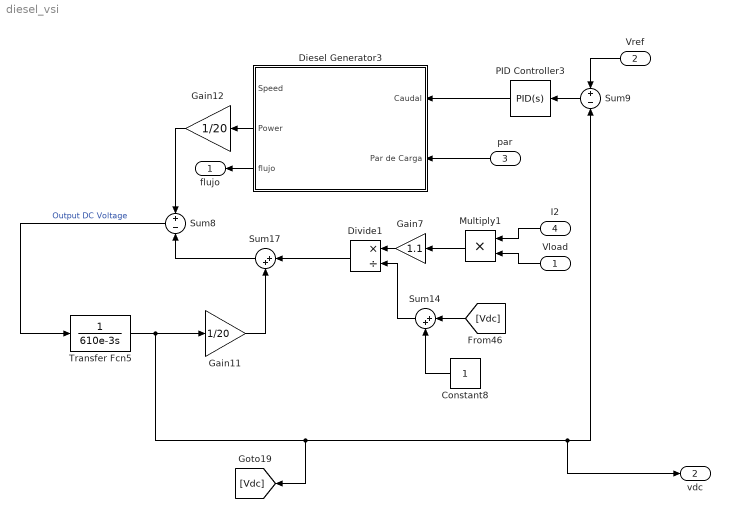
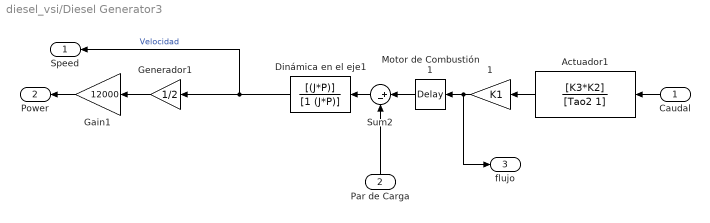
/*
 * File: diesel_vsi.c
 *
 * Code generated for Simulink model 'diesel_vsi'.
 *
 * Model version                  : 1.25
 * Simulink Coder version         : 8.14 (R2018a) 06-Feb-2018
 * C/C++ source code generated on : Tue May 14 08:17:43 2019
 *
 * Target selection: ert.tlc
 * Embedded hardware selection: Intel->x86-64 (Windows64)
 * Code generation objectives: Unspecified
 * Validation result: Not run
 */

#include "diesel_vsi.h"
#include "diesel_vsi_private.h"

/* Block signals (default storage) */
B_diesel_vsi_T diesel_vsi_B;

/* Continuous states */
X_diesel_vsi_T diesel_vsi_X;

/* Block states (default storage) */
DW_diesel_vsi_T diesel_vsi_DW;

/* External inputs (root inport signals with default storage) */
ExtU_diesel_vsi_T diesel_vsi_U;

/* External outputs (root outports fed by signals with default storage) */
ExtY_diesel_vsi_T diesel_vsi_Y;

/* Real-time model */
RT_MODEL_diesel_vsi_T diesel_vsi_M_;
RT_MODEL_diesel_vsi_T *const diesel_vsi_M = &diesel_vsi_M_;


//-------Funciones para asignar entradas-------------
void set_Vload(double Vload){
	diesel_vsi_U.Vload=Vload;
}

void set_par(double par){
	diesel_vsi_U.par=par;
}

void set_Vref(double flujo){
	diesel_vsi_U.Vref=flujo;
}

void set_Iinv(double iinv){
	diesel_vsi_U.I2=iinv;
}

//-----Funciones para obtener valores de las salidas-------

double get_flujo(void){
	return diesel_vsi_Y.flujo;
}

double get_vdc(void){
	return diesel_vsi_Y.vdc;
}

/*
 * Time delay interpolation routine
 *
 * The linear interpolation is performed using the formula:
 *
 *          (t2 - tMinusDelay)         (tMinusDelay - t1)
 * u(t)  =  ----------------- * u1  +  ------------------- * u2
 *              (t2 - t1)                  (t2 - t1)
 */
real_T rt_TDelayInterpolate(
  real_T tMinusDelay,                  /* tMinusDelay = currentSimTime - delay */
  real_T tStart,
  real_T *tBuf,
  real_T *uBuf,
  int_T bufSz,
  int_T *lastIdx,
  int_T oldestIdx,
  int_T newIdx,
  real_T initOutput,
  boolean_T discrete,
  boolean_T minorStepAndTAtLastMajorOutput)
{
  int_T i;
  real_T yout, t1, t2, u1, u2;

  /*
   * If there is only one data point in the buffer, this data point must be
   * the t= 0 and tMinusDelay > t0, it ask for something unknown. The best
   * guess if initial output as well
   */
  if ((newIdx == 0) && (oldestIdx ==0 ) && (tMinusDelay > tStart))
    return initOutput;

  /*
   * If tMinusDelay is less than zero, should output initial value
   */
  if (tMinusDelay <= tStart)
    return initOutput;

  /* For fixed buffer extrapolation:
   * if tMinusDelay is small than the time at oldestIdx, if discrete, output
   * tailptr value,  else use tailptr and tailptr+1 value to extrapolate
   * It is also for fixed buffer. Note: The same condition can happen for transport delay block where
   * use tStart and and t[tail] other than using t[tail] and t[tail+1].
   * See below
   */
  if ((tMinusDelay <= tBuf[oldestIdx] ) ) {
    if (discrete) {
      return(uBuf[oldestIdx]);
    } else {
      int_T tempIdx= oldestIdx + 1;
      if (oldestIdx == bufSz-1)
        tempIdx = 0;
      t1= tBuf[oldestIdx];
      t2= tBuf[tempIdx];
      u1= uBuf[oldestIdx];
      u2= uBuf[tempIdx];
      if (t2 == t1) {
        if (tMinusDelay >= t2) {
          yout = u2;
        } else {
          yout = u1;
        }
      } else {
        real_T f1 = (t2-tMinusDelay) / (t2-t1);
        real_T f2 = 1.0 - f1;

        /*
         * Use Lagrange's interpolation formula.  Exact outputs at t1, t2.
         */
        yout = f1*u1 + f2*u2;
      }

      return yout;
    }
  }

  /*
   * When block does not have direct feedthrough, we use the table of
   * values to extrapolate off the end of the table for delays that are less
   * than 0 (less then step size).  This is not completely accurate.  The
   * chain of events is as follows for a given time t.  Major output - look
   * in table.  Update - add entry to table.  Now, if we call the output at
   * time t again, there is a new entry in the table. For very small delays,
   * this means that we will have a different answer from the previous call
   * to the output fcn at the same time t.  The following code prevents this
   * from happening.
   */
  if (minorStepAndTAtLastMajorOutput) {
    /* pretend that the new entry has not been added to table */
    if (newIdx != 0) {
      if (*lastIdx == newIdx) {
        (*lastIdx)--;
      }

      newIdx--;
    } else {
      if (*lastIdx == newIdx) {
        *lastIdx = bufSz-1;
      }

      newIdx = bufSz - 1;
    }
  }

  i = *lastIdx;
  if (tBuf[i] < tMinusDelay) {
    /* Look forward starting at last index */
    while (tBuf[i] < tMinusDelay) {
      /* May occur if the delay is less than step-size - extrapolate */
      if (i == newIdx)
        break;
      i = ( i < (bufSz-1) ) ? (i+1) : 0;/* move through buffer */
    }
  } else {
    /*
     * Look backwards starting at last index which can happen when the
     * delay time increases.
     */
    while (tBuf[i] >= tMinusDelay) {
      /*
       * Due to the entry condition at top of function, we
       * should never hit the end.
       */
      i = (i > 0) ? i-1 : (bufSz-1);   /* move through buffer */
    }

    i = ( i < (bufSz-1) ) ? (i+1) : 0;
  }

  *lastIdx = i;
  if (discrete) {
    /*
     * tempEps = 128 * eps;
     * localEps = max(tempEps, tempEps*fabs(tBuf[i]))/2;
     */
    double tempEps = (DBL_EPSILON) * 128.0;
    double localEps = tempEps * fabs(tBuf[i]);
    if (tempEps > localEps) {
      localEps = tempEps;
    }

    localEps = localEps / 2.0;
    if (tMinusDelay >= (tBuf[i] - localEps)) {
      yout = uBuf[i];
    } else {
      if (i == 0) {
        yout = uBuf[bufSz-1];
      } else {
        yout = uBuf[i-1];
      }
    }
  } else {
    if (i == 0) {
      t1 = tBuf[bufSz-1];
      u1 = uBuf[bufSz-1];
    } else {
      t1 = tBuf[i-1];
      u1 = uBuf[i-1];
    }

    t2 = tBuf[i];
    u2 = uBuf[i];
    if (t2 == t1) {
      if (tMinusDelay >= t2) {
        yout = u2;
      } else {
        yout = u1;
      }
    } else {
      real_T f1 = (t2-tMinusDelay) / (t2-t1);
      real_T f2 = 1.0 - f1;

      /*
       * Use Lagrange's interpolation formula.  Exact outputs at t1, t2.
       */
      yout = f1*u1 + f2*u2;
    }
  }

  return(yout);
}

/*
 * This function updates continuous states using the ODE4 fixed-step
 * solver algorithm
 */
static void rt_ertODEUpdateContinuousStates(RTWSolverInfo *si )
{
  time_T t = rtsiGetT(si);
  time_T tnew = rtsiGetSolverStopTime(si);
  time_T h = rtsiGetStepSize(si);
  real_T *x = rtsiGetContStates(si);
  ODE4_IntgData *id = (ODE4_IntgData *)rtsiGetSolverData(si);
  real_T *y = id->y;
  real_T *f0 = id->f[0];
  real_T *f1 = id->f[1];
  real_T *f2 = id->f[2];
  real_T *f3 = id->f[3];
  real_T temp;
  int_T i;
  int_T nXc = 5;
  rtsiSetSimTimeStep(si,MINOR_TIME_STEP);

  /* Save the state values at time t in y, we'll use x as ynew. */
  (void) memcpy(y, x,
                (uint_T)nXc*sizeof(real_T));

  /* Assumes that rtsiSetT and ModelOutputs are up-to-date */
  /* f0 = f(t,y) */
  rtsiSetdX(si, f0);
  diesel_vsi_derivatives();

  /* f1 = f(t + (h/2), y + (h/2)*f0) */
  temp = 0.5 * h;
  for (i = 0; i < nXc; i++) {
    x[i] = y[i] + (temp*f0[i]);
  }

  rtsiSetT(si, t + temp);
  rtsiSetdX(si, f1);
  diesel_vsi_step();
  diesel_vsi_derivatives();

  /* f2 = f(t + (h/2), y + (h/2)*f1) */
  for (i = 0; i < nXc; i++) {
    x[i] = y[i] + (temp*f1[i]);
  }

  rtsiSetdX(si, f2);
  diesel_vsi_step();
  diesel_vsi_derivatives();

  /* f3 = f(t + h, y + h*f2) */
  for (i = 0; i < nXc; i++) {
    x[i] = y[i] + (h*f2[i]);
  }

  rtsiSetT(si, tnew);
  rtsiSetdX(si, f3);
  diesel_vsi_step();
  diesel_vsi_derivatives();

  /* tnew = t + h
     ynew = y + (h/6)*(f0 + 2*f1 + 2*f2 + 2*f3) */
  temp = h / 6.0;
  for (i = 0; i < nXc; i++) {
    x[i] = y[i] + temp*(f0[i] + 2.0*f1[i] + 2.0*f2[i] + f3[i]);
  }

  rtsiSetSimTimeStep(si,MAJOR_TIME_STEP);
}

/* Model step function */
void diesel_vsi_step(void)
{
  /* local block i/o variables */
  real_T rtb_u;
  real_T rtb_MotordeCombustin1;
  real_T rtb_Sum9;
  if (rtmIsMajorTimeStep(diesel_vsi_M)) {
    /* set solver stop time */
    rtsiSetSolverStopTime(&diesel_vsi_M->solverInfo,
                          ((diesel_vsi_M->Timing.clockTick0+1)*
      diesel_vsi_M->Timing.stepSize0));
  }                                    /* end MajorTimeStep */

  /* Update absolute time of base rate at minor time step */
  if (rtmIsMinorTimeStep(diesel_vsi_M)) {
    diesel_vsi_M->Timing.t[0] = rtsiGetT(&diesel_vsi_M->solverInfo);
  }

  /* Gain: '<S1>/ 1' incorporates:
   *  TransferFcn: '<S1>/Actuador1'
   */
  rtb_u = 8.0 * diesel_vsi_X.Actuador1_CSTATE * 1.15;

  /* Outport: '<Root>/flujo' */
  diesel_vsi_Y.flujo = rtb_u;

  /* TransferFcn: '<Root>/Transfer Fcn5' */
  rtb_Sum9 = 1.639344262295082 * diesel_vsi_X.TransferFcn5_CSTATE;

  /* Outport: '<Root>/vdc' */
  diesel_vsi_Y.vdc = rtb_Sum9;

  /* TransferFcn: '<S1>/Din�mica en el eje1' */
  rtb_MotordeCombustin1 = 0.0;
  rtb_MotordeCombustin1 += 0.03 * diesel_vsi_X.Dinmicaeneleje1_CSTATE;

  /* Sum: '<Root>/Sum8' incorporates:
   *  Constant: '<Root>/Constant8'
   *  Gain: '<Root>/Gain11'
   *  Gain: '<Root>/Gain12'
   *  Gain: '<Root>/Gain7'
   *  Gain: '<S1>/ Generador1'
   *  Gain: '<S1>/Gain1'
   *  Inport: '<Root>/I2'
   *  Inport: '<Root>/Vload'
   *  Product: '<Root>/Divide1'
   *  Product: '<Root>/Multiply1'
   *  Sum: '<Root>/Sum14'
   *  Sum: '<Root>/Sum17'
   */
  diesel_vsi_B.OutputDCVoltage = 0.5 * rtb_MotordeCombustin1 * 12000.0 * 0.05 -
    (diesel_vsi_U.I2 * diesel_vsi_U.Vload * 1.1 / (rtb_Sum9 + 1.0) + 0.05 *
     rtb_Sum9);

  /* Sum: '<Root>/Sum9' incorporates:
   *  Inport: '<Root>/Vref'
   */
  rtb_Sum9 = diesel_vsi_U.Vref - rtb_Sum9;

  /* Integrator: '<S2>/Filter' */
  rtb_MotordeCombustin1 = diesel_vsi_X.Filter_CSTATE;

  /* Gain: '<S2>/Filter Coefficient' incorporates:
   *  Gain: '<S2>/Derivative Gain'
   *  Sum: '<S2>/SumD'
   */
  diesel_vsi_B.FilterCoefficient = (0.00224356290205903 * rtb_Sum9 -
    rtb_MotordeCombustin1) * 0.155980576752107;

  /* Integrator: '<S2>/Integrator' */
  rtb_MotordeCombustin1 = diesel_vsi_X.Integrator_CSTATE;

  /* Sum: '<S2>/Sum' incorporates:
   *  Gain: '<S2>/Proportional Gain'
   */
  diesel_vsi_B.Sum = (0.000853612192208084 * rtb_Sum9 + rtb_MotordeCombustin1) +
    diesel_vsi_B.FilterCoefficient;

  /* Gain: '<S2>/Integral Gain' */
  diesel_vsi_B.IntegralGain = 3.94394231511782E-5 * rtb_Sum9;

  /* TransportDelay: '<S1>/Motor de Combusti�n1' */
  {
    real_T **uBuffer = (real_T**)
      &diesel_vsi_DW.MotordeCombustin1_PWORK.TUbufferPtrs[0];
    real_T **tBuffer = (real_T**)
      &diesel_vsi_DW.MotordeCombustin1_PWORK.TUbufferPtrs[1];
    real_T simTime = diesel_vsi_M->Timing.t[0];
    real_T tMinusDelay = simTime - 0.5;
    rtb_MotordeCombustin1 = rt_TDelayInterpolate(
      tMinusDelay,
      0.0,
      *tBuffer,
      *uBuffer,
      diesel_vsi_DW.MotordeCombustin1_IWORK.CircularBufSize,
      &diesel_vsi_DW.MotordeCombustin1_IWORK.Last,
      diesel_vsi_DW.MotordeCombustin1_IWORK.Tail,
      diesel_vsi_DW.MotordeCombustin1_IWORK.Head,
      0.0,
      0,
      0);
  }

  /* Sum: '<S1>/Sum2' incorporates:
   *  Inport: '<Root>/par'
   */
  diesel_vsi_B.Sum2 = rtb_MotordeCombustin1 - diesel_vsi_U.par;
  if (rtmIsMajorTimeStep(diesel_vsi_M)) {
    /* Update for TransportDelay: '<S1>/Motor de Combusti�n1' */
    {
      real_T **uBuffer = (real_T**)
        &diesel_vsi_DW.MotordeCombustin1_PWORK.TUbufferPtrs[0];
      real_T **tBuffer = (real_T**)
        &diesel_vsi_DW.MotordeCombustin1_PWORK.TUbufferPtrs[1];
      real_T simTime = diesel_vsi_M->Timing.t[0];
      diesel_vsi_DW.MotordeCombustin1_IWORK.Head =
        ((diesel_vsi_DW.MotordeCombustin1_IWORK.Head <
          (diesel_vsi_DW.MotordeCombustin1_IWORK.CircularBufSize-1)) ?
         (diesel_vsi_DW.MotordeCombustin1_IWORK.Head+1) : 0);
      if (diesel_vsi_DW.MotordeCombustin1_IWORK.Head ==
          diesel_vsi_DW.MotordeCombustin1_IWORK.Tail) {
        diesel_vsi_DW.MotordeCombustin1_IWORK.Tail =
          ((diesel_vsi_DW.MotordeCombustin1_IWORK.Tail <
            (diesel_vsi_DW.MotordeCombustin1_IWORK.CircularBufSize-1)) ?
           (diesel_vsi_DW.MotordeCombustin1_IWORK.Tail+1) : 0);
      }

      (*tBuffer)[diesel_vsi_DW.MotordeCombustin1_IWORK.Head] = simTime;
      (*uBuffer)[diesel_vsi_DW.MotordeCombustin1_IWORK.Head] = rtb_u;
    }
  }                                    /* end MajorTimeStep */

  if (rtmIsMajorTimeStep(diesel_vsi_M)) {
    rt_ertODEUpdateContinuousStates(&diesel_vsi_M->solverInfo);

    /* Update absolute time for base rate */
    /* The "clockTick0" counts the number of times the code of this task has
     * been executed. The absolute time is the multiplication of "clockTick0"
     * and "Timing.stepSize0". Size of "clockTick0" ensures timer will not
     * overflow during the application lifespan selected.
     */
    ++diesel_vsi_M->Timing.clockTick0;
    diesel_vsi_M->Timing.t[0] = rtsiGetSolverStopTime(&diesel_vsi_M->solverInfo);

    {
      /* Update absolute timer for sample time: [0.0001s, 0.0s] */
      /* The "clockTick1" counts the number of times the code of this task has
       * been executed. The resolution of this integer timer is 0.0001, which is the step size
       * of the task. Size of "clockTick1" ensures timer will not overflow during the
       * application lifespan selected.
       */
      diesel_vsi_M->Timing.clockTick1++;
    }
  }                                    /* end MajorTimeStep */
}
